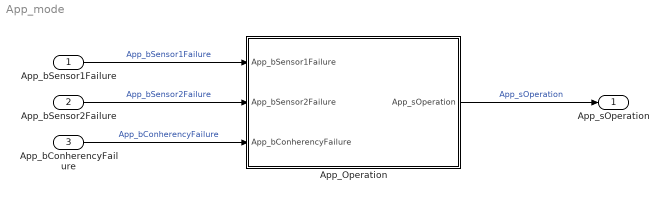
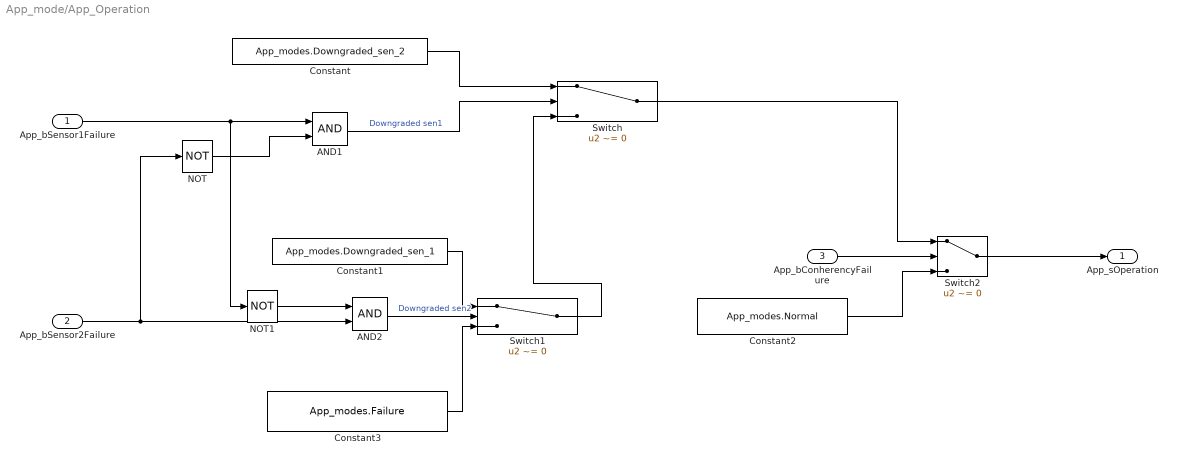
/*
 * File: App_mode.c
 *
 * Code generated for Simulink model 'App_mode'.
 *
 * Model version                  : 1.14
 * Simulink Coder version         : 9.8 (R2022b) 13-May-2022
 * C/C++ source code generated on : Fri Dec  8 14:02:20 2023
 *
 * Target selection: ert.tlc
 * Embedded hardware selection: Atmel->AVR
 * Code generation objectives:
 *    1. Execution efficiency
 *    2. RAM efficiency
 * Validation result: Not run
 */

#include "App_mode.h"

/* External inputs (root inport signals with default storage) */
ExtU rtU;

/* External outputs (root outports fed by signals with default storage) */
ExtY rtY;

/* Model step function */
void App_mode_step(void)
{
  /* Switch: '<S1>/Switch2' incorporates:
   *  Inport: '<Root>/App_bConherencyFailure'
   */
  if (rtU.App_bConherencyFailure != 0.0) {
    /* Switch: '<S1>/Switch' incorporates:
     *  Inport: '<Root>/App_bSensor1Failure'
     *  Inport: '<Root>/App_bSensor2Failure'
     *  Logic: '<S1>/AND1'
     *  Logic: '<S1>/AND2'
     *  Logic: '<S1>/NOT'
     *  Logic: '<S1>/NOT1'
     *  Switch: '<S1>/Switch1'
     */
    if (rtU.App_bSensor1Failure && (!rtU.App_bSensor2Failure)) {
      /* Outport: '<Root>/App_sOperation' incorporates:
       *  Constant: '<S1>/Constant'
       */
      rtY.App_sOperation = Downgraded_sen_2;
    } else if ((!rtU.App_bSensor1Failure) && rtU.App_bSensor2Failure) {
      /* Switch: '<S1>/Switch1' incorporates:
       *  Constant: '<S1>/Constant1'
       *  Outport: '<Root>/App_sOperation'
       */
      rtY.App_sOperation = Downgraded_sen_1;
    } else {
      /* Outport: '<Root>/App_sOperation' incorporates:
       *  Constant: '<S1>/Constant3'
       *  Switch: '<S1>/Switch1'
       */
      rtY.App_sOperation = Failure;
    }

    /* End of Switch: '<S1>/Switch' */
  } else {
    /* Outport: '<Root>/App_sOperation' incorporates:
     *  Constant: '<S1>/Constant2'
     */
    rtY.App_sOperation = Normal;
  }

  /* End of Switch: '<S1>/Switch2' */
}
